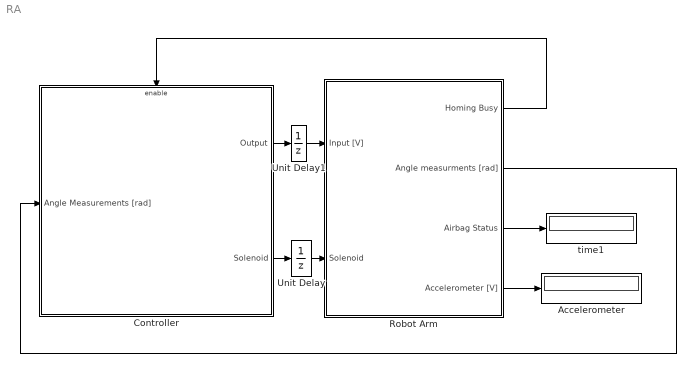
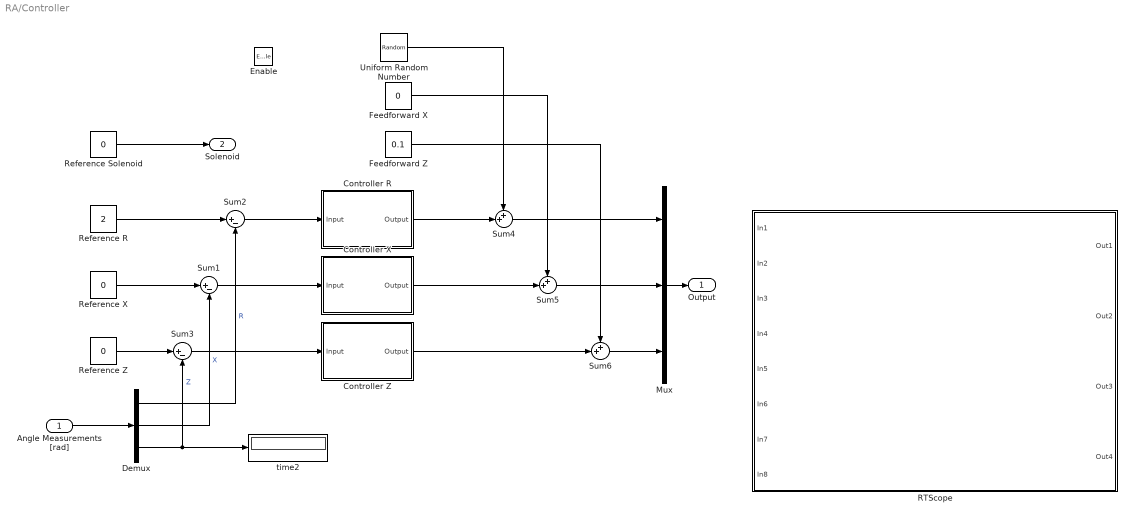
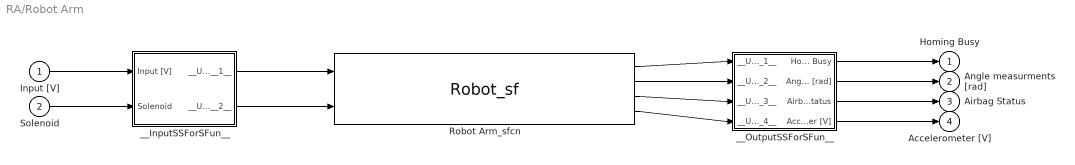
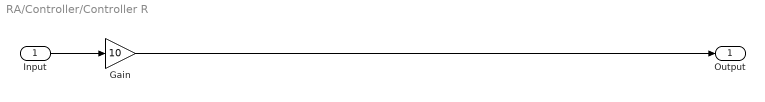
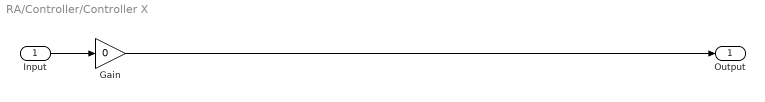
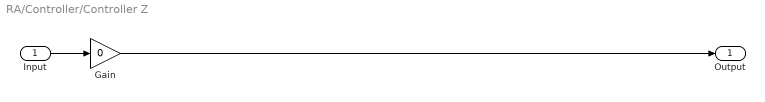
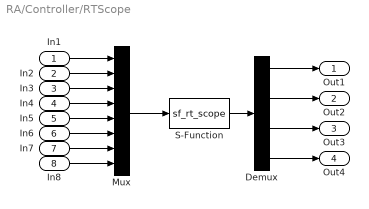
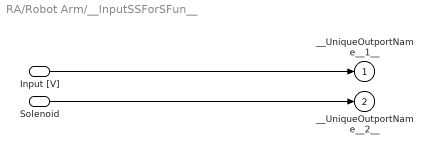
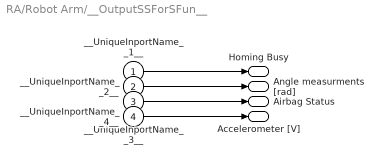
/*
 * RA.c
 *
 * Academic License - for use in teaching, academic research, and meeting
 * course requirements at degree granting institutions only.  Not for
 * government, commercial, or other organizational use.
 *
 * Code generation for model "RA".
 *
 * Model version              : 1.899
 * Simulink Coder version : 8.9 (R2015b) 13-Aug-2015
 * C source code generated on : Wed Mar 23 16:29:19 2016
 *
 * Target selection: ectarget.tlc
 * Note: GRT includes extra infrastructure and instrumentation for prototyping
 * Embedded hardware selection: 32-bit Generic
 * Code generation objectives: Unspecified
 * Validation result: Not run
 */

#include "RA.h"
#include "RA_private.h"
#include "RA_dt.h"
#undef S_FUNCTION_NAME
#if !defined(RTW_GENERATED_SFCN_TUNABLE_PRMS_Robot_sf)
#define RTW_GENERATED_SFCN_TUNABLE_PRMS_Robot_sf
#endif

#include "Robot_sf.h"

const real_T RA_RGND = 0.0;            /* real_T ground */

/* Block signals (auto storage) */
B_RA_T RA_B;

/* Block states (auto storage) */
DW_RA_T RA_DW;

/* Real-time model */
RT_MODEL_RA_T RA_M_;
RT_MODEL_RA_T *const RA_M = &RA_M_;
real_T rt_urand_Upu32_Yd_f_pw_snf(uint32_T *u)
{
  uint32_T lo;
  uint32_T hi;

  /* Uniform random number generator (random number between 0 and 1)

     #define IA      16807                      magic multiplier = 7^5
     #define IM      2147483647                 modulus = 2^31-1
     #define IQ      127773                     IM div IA
     #define IR      2836                       IM modulo IA
     #define S       4.656612875245797e-10      reciprocal of 2^31-1
     test = IA * (seed % IQ) - IR * (seed/IQ)
     seed = test < 0 ? (test + IM) : test
     return (seed*S)
   */
  lo = *u % 127773U * 16807U;
  hi = *u / 127773U * 2836U;
  if (lo < hi) {
    *u = 2147483647U - (hi - lo);
  } else {
    *u = lo - hi;
  }

  return (real_T)*u * 4.6566128752457969E-10;
}

/* Model output function */
void RA_output(void)
{
  /* Reset subsysRan breadcrumbs */
  srClearBC(RA_DW.Controller_SubsysRanBC);

  /* UnitDelay: '<Root>/Unit Delay1' */
  RA_B.UnitDelay1[0] = RA_DW.UnitDelay1_DSTATE[0];
  RA_B.UnitDelay1[1] = RA_DW.UnitDelay1_DSTATE[1];
  RA_B.UnitDelay1[2] = RA_DW.UnitDelay1_DSTATE[2];

  /* UnitDelay: '<Root>/Unit Delay' */
  RA_B.UnitDelay = RA_DW.UnitDelay_DSTATE;

  /* RTW Generated Level2 S-Function Block: '<S2>/Robot Arm_sfcn' (Robot_sf) */
  {
    SimStruct *rts = RA_M->childSfunctions[1];
    sfcnOutputs(rts, 0);
  }

  /* Outputs for Enabled SubSystem: '<Root>/Controller' incorporates:
   *  EnablePort: '<S1>/Enable'
   */
  if (RA_B.RobotArm_sfcn_o1 > 0.0) {
    if (!RA_DW.Controller_MODE) {
      RA_DW.Controller_MODE = true;
    }
  } else {
    if (RA_DW.Controller_MODE) {
      RA_DW.Controller_MODE = false;
    }
  }

  if (RA_DW.Controller_MODE) {
    /* UniformRandomNumber: '<S1>/Uniform Random Number' */
    RA_B.UniformRandomNumber = RA_DW.UniformRandomNumber_NextOutput;

    /* Sum: '<S1>/Sum4' incorporates:
     *  Constant: '<S1>/Reference R'
     *  Gain: '<S3>/Gain'
     *  Sum: '<S1>/Sum2'
     */
    RA_B.Sum4 = (RA_P.ReferenceR_Value - RA_B.RobotArm_sfcn_o2[0]) *
      RA_P.Gain_Gain + RA_B.UniformRandomNumber;

    /* Sum: '<S1>/Sum5' incorporates:
     *  Constant: '<S1>/Feedforward X'
     *  Constant: '<S1>/Reference X'
     *  Gain: '<S4>/Gain'
     *  Sum: '<S1>/Sum1'
     */
    RA_B.Sum5 = (RA_P.ReferenceX_Value - RA_B.RobotArm_sfcn_o2[1]) *
      RA_P.Gain_Gain_e + RA_P.FeedforwardX_Value;

    /* Sum: '<S1>/Sum6' incorporates:
     *  Constant: '<S1>/Feedforward Z'
     *  Constant: '<S1>/Reference Z'
     *  Gain: '<S5>/Gain'
     *  Sum: '<S1>/Sum3'
     */
    RA_B.Sum6 = (RA_P.ReferenceZ_Value - RA_B.RobotArm_sfcn_o2[2]) *
      RA_P.Gain_Gain_l + RA_P.FeedforwardZ_Value;

    /* Constant: '<S1>/Reference Solenoid' */
    RA_B.ReferenceSolenoid = RA_P.ReferenceSolenoid_Value;

    /* Level2 S-Function Block: '<S6>/S-Function' (sf_rt_scope) */
    {
      SimStruct *rts = RA_M->childSfunctions[0];
      sfcnOutputs(rts, 0);
    }

    srUpdateBC(RA_DW.Controller_SubsysRanBC);
  }

  /* End of Outputs for SubSystem: '<Root>/Controller' */
}

/* Model update function */
void RA_update(void)
{
  /* Update for UnitDelay: '<Root>/Unit Delay1' */
  RA_DW.UnitDelay1_DSTATE[0] = RA_B.Sum4;
  RA_DW.UnitDelay1_DSTATE[1] = RA_B.Sum5;
  RA_DW.UnitDelay1_DSTATE[2] = RA_B.Sum6;

  /* Update for UnitDelay: '<Root>/Unit Delay' */
  RA_DW.UnitDelay_DSTATE = RA_B.ReferenceSolenoid;

  /* RTW Generated Level2 S-Function Block: '<S2>/Robot Arm_sfcn' (Robot_sf) */
  {
    SimStruct *rts = RA_M->childSfunctions[1];
    sfcnUpdate(rts, 0);
    if (ssGetErrorStatus(rts) != (NULL))
      return;
  }

  /* Update for Enabled SubSystem: '<Root>/Controller' incorporates:
   *  Update for EnablePort: '<S1>/Enable'
   */
  if (RA_DW.Controller_MODE) {
    /* Update for UniformRandomNumber: '<S1>/Uniform Random Number' */
    RA_DW.UniformRandomNumber_NextOutput = (RA_P.UniformRandomNumber_Maximum -
      RA_P.UniformRandomNumber_Minimum) * rt_urand_Upu32_Yd_f_pw_snf
      (&RA_DW.RandSeed) + RA_P.UniformRandomNumber_Minimum;
  }

  /* End of Update for SubSystem: '<Root>/Controller' */

  /* Update absolute time for base rate */
  /* The "clockTick0" counts the number of times the code of this task has
   * been executed. The absolute time is the multiplication of "clockTick0"
   * and "Timing.stepSize0". Size of "clockTick0" ensures timer will not
   * overflow during the application lifespan selected.
   * Timer of this task consists of two 32 bit unsigned integers.
   * The two integers represent the low bits Timing.clockTick0 and the high bits
   * Timing.clockTickH0. When the low bit overflows to 0, the high bits increment.
   */
  if (!(++RA_M->Timing.clockTick0)) {
    ++RA_M->Timing.clockTickH0;
  }

  RA_M->Timing.t[0] = RA_M->Timing.clockTick0 * RA_M->Timing.stepSize0 +
    RA_M->Timing.clockTickH0 * RA_M->Timing.stepSize0 * 4294967296.0;

  {
    /* Update absolute timer for sample time: [0.000244140625s, 0.0s] */
    /* The "clockTick1" counts the number of times the code of this task has
     * been executed. The absolute time is the multiplication of "clockTick1"
     * and "Timing.stepSize1". Size of "clockTick1" ensures timer will not
     * overflow during the application lifespan selected.
     * Timer of this task consists of two 32 bit unsigned integers.
     * The two integers represent the low bits Timing.clockTick1 and the high bits
     * Timing.clockTickH1. When the low bit overflows to 0, the high bits increment.
     */
    if (!(++RA_M->Timing.clockTick1)) {
      ++RA_M->Timing.clockTickH1;
    }

    RA_M->Timing.t[1] = RA_M->Timing.clockTick1 * RA_M->Timing.stepSize1 +
      RA_M->Timing.clockTickH1 * RA_M->Timing.stepSize1 * 4294967296.0;
  }
}
